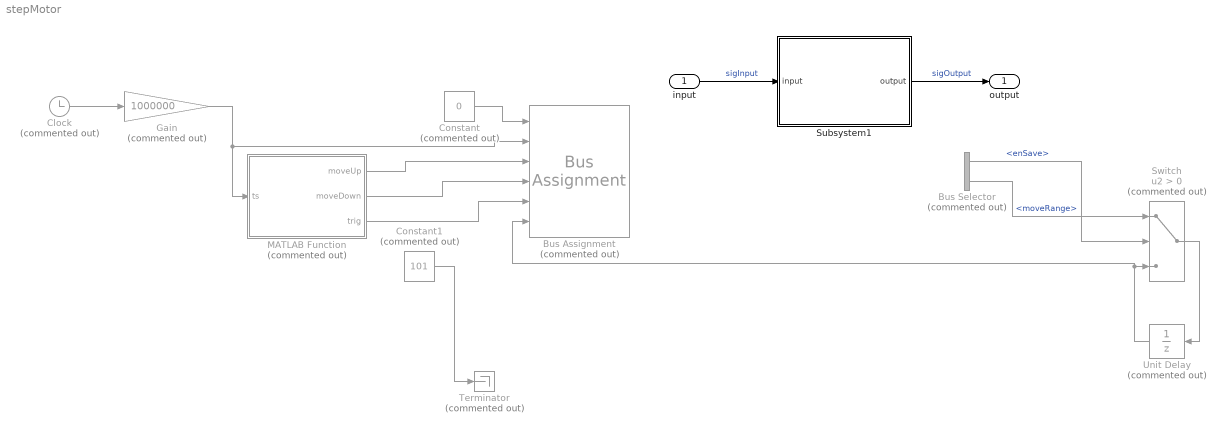
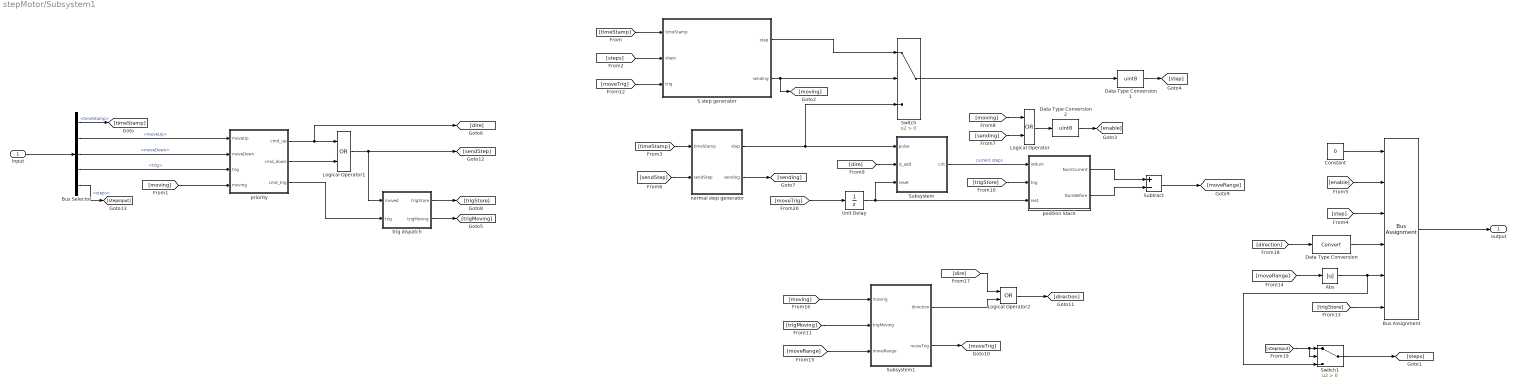
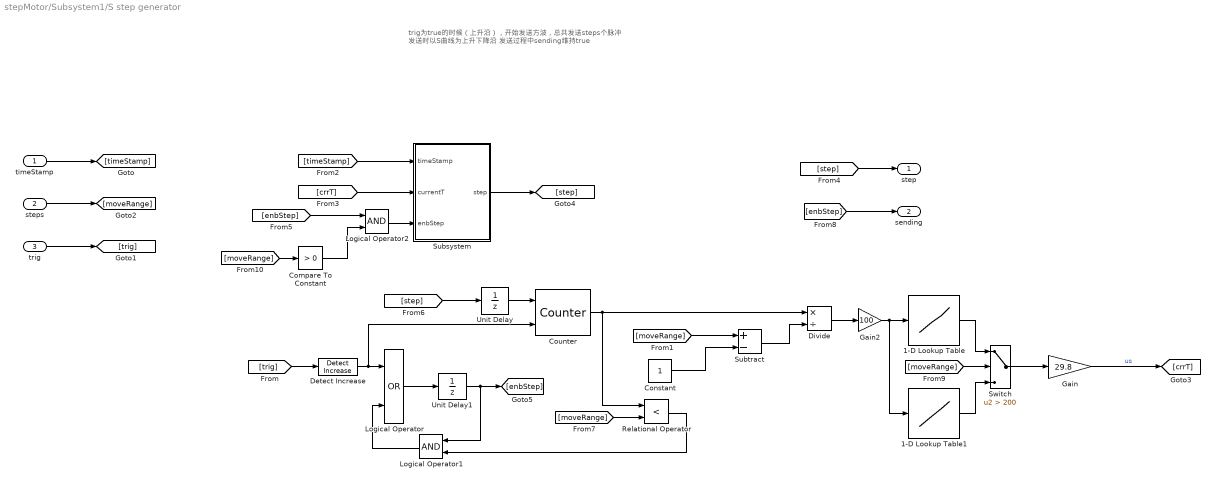
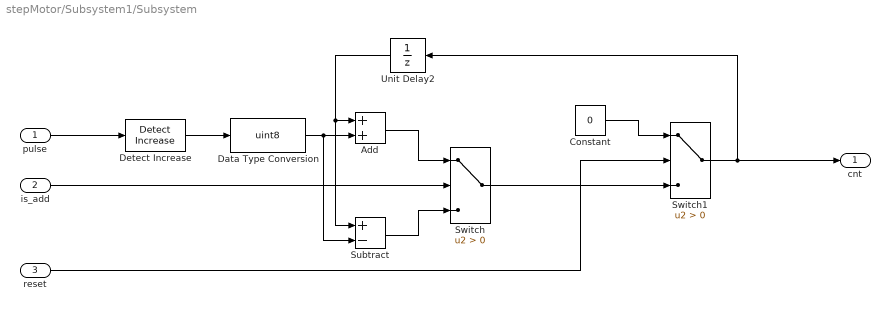
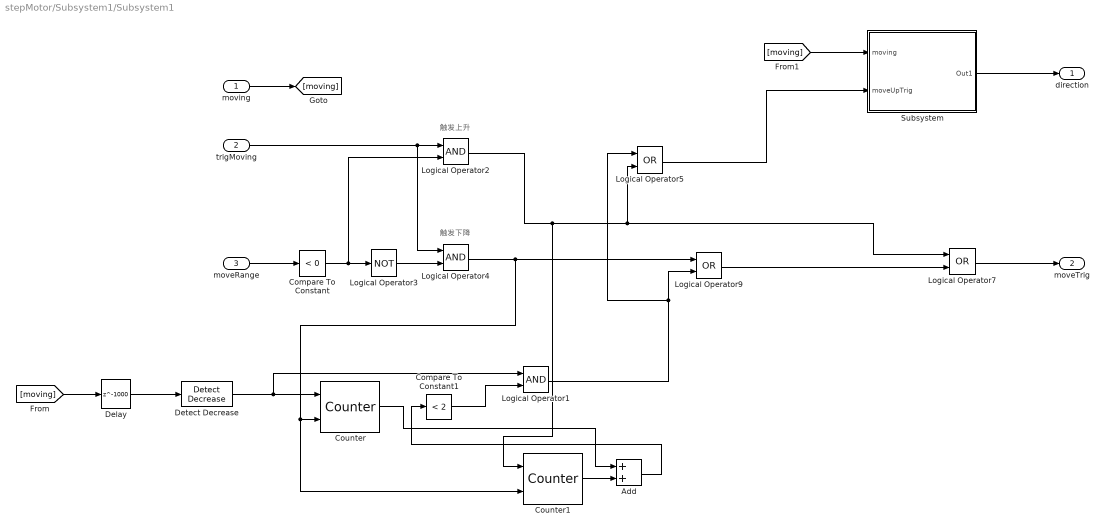
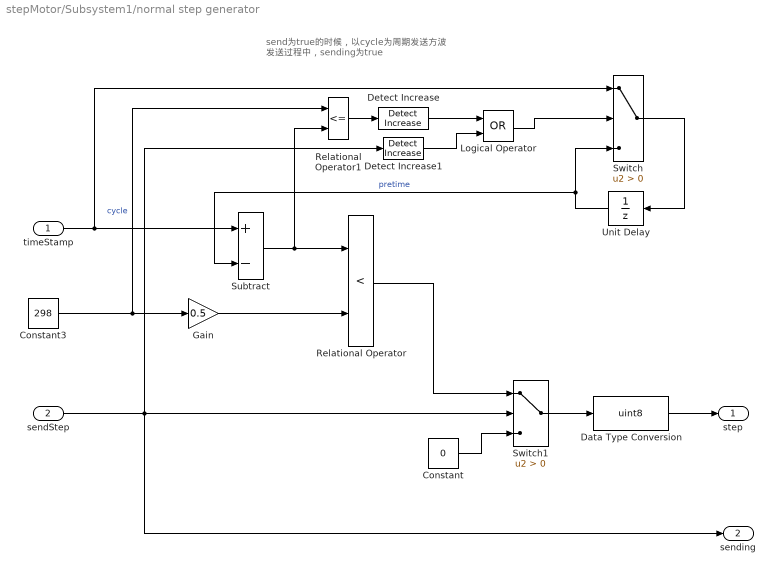
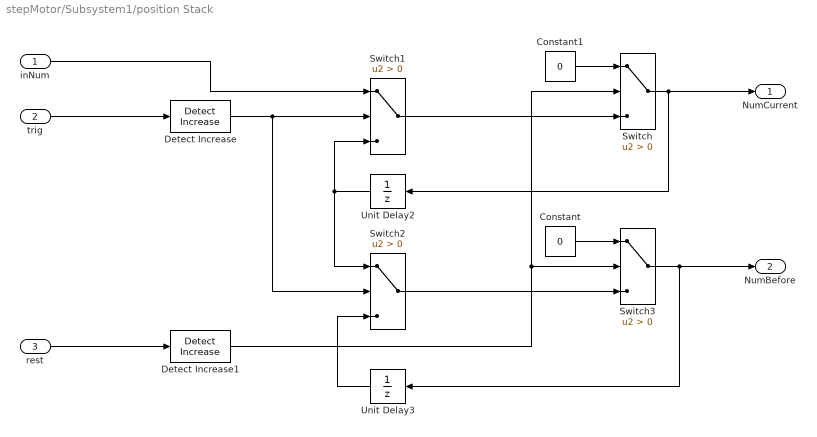
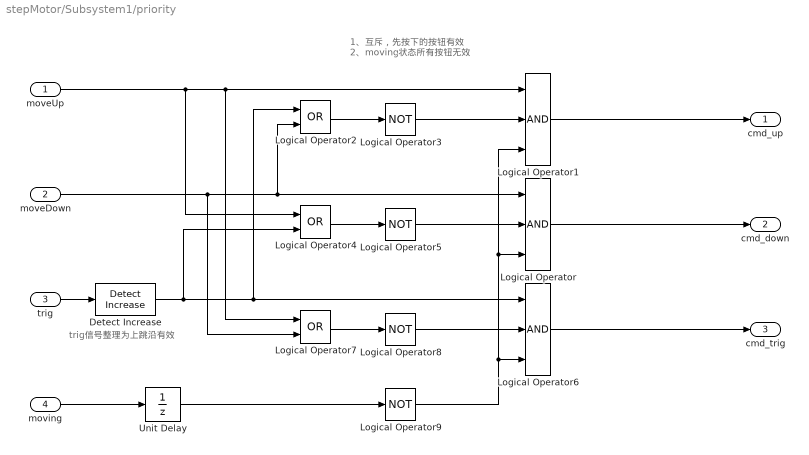
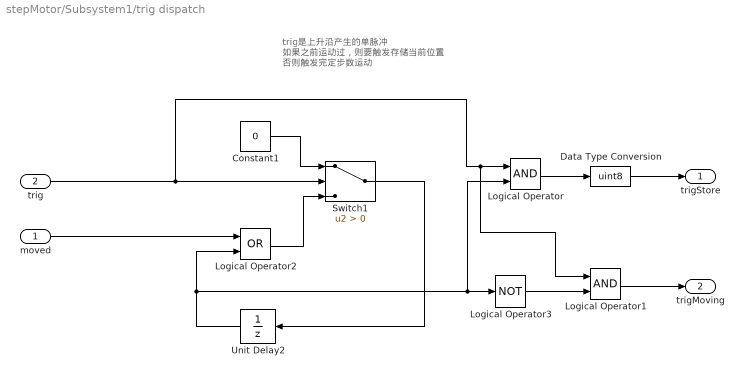
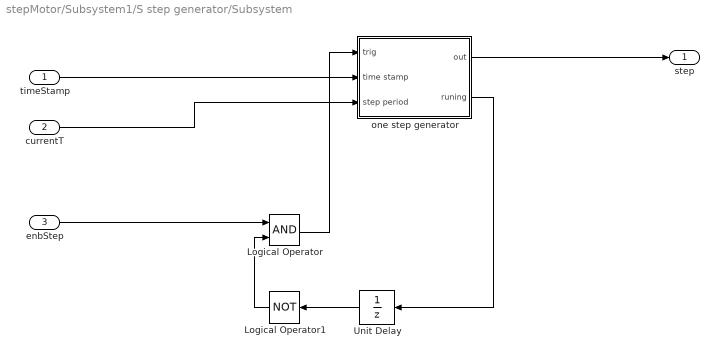
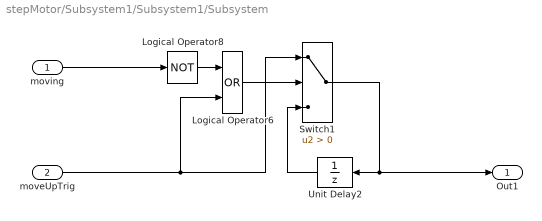
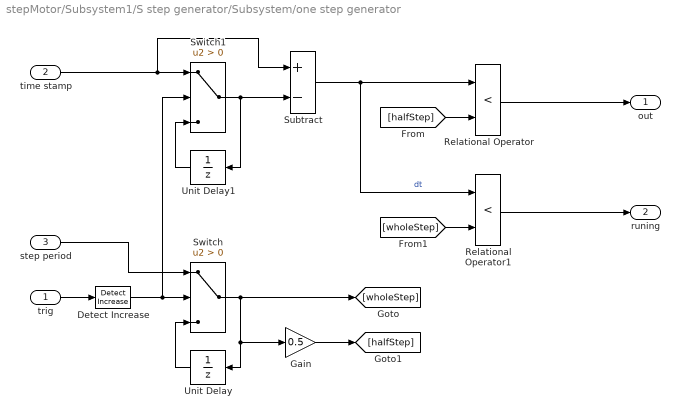
== matlab function stepMotor/MATLAB Function ==
function [moveUp, moveDown, trig] = fcn(ts)
    moveUp = uint8(0);
    moveDown = uint8(0);
    trig = uint8(0);

    if(ts>100000 && ts <200000) % 0.1s-0.2s
        moveDown = uint8(1);
    end

    if(ts>280000 && ts <290000) % 0.28s-0.29s
        trig = uint8(1);
    end

    if(ts>300000 && ts <350000) % 0.30s-0.35s
        moveUp = uint8(1);
    end

    if(ts>360000 && ts <370000) % 0.36s-0.37s
        trig = uint8(1);
    end

    if(ts>380000 && ts <390000) % 0.38s-0.39s
        trig = uint8(1);
    end

    if(ts>400000 && ts <410000) % 0.4s-0.41s
        trig = uint8(1);
    end

    if(ts>420000 && ts <430000) % 0.42s-0.43s
        trig = uint8(1);
    end
end

/*
 * File: stepMotor.c
 *
 * Code generated for Simulink model 'stepMotor'.
 *
 * Model version                  : 1.85
 * Simulink Coder version         : 23.2 (R2023b) 01-Aug-2023
 * C/C++ source code generated on : Sun Jun 30 20:59:51 2024
 *
 * Target selection: ert.tlc
 * Embedded hardware selection: ARM Compatible->ARM Cortex-M
 * Code generation objectives: Unspecified
 * Validation result: Not run
 */

#include "stepMotor.h"
#include "stepMotor_private.h"
#include "rtwtypes.h"
#include "stepMotor_types.h"
#include "multiword_types.h"

/* Exported block signals */
outStruct sigOutput;                   /* '<S1>/Bus Assignment' */

/* Block signals (default storage) */
B_stepMotor_T stepMotor_B;

/* Block states (default storage) */
DW_stepMotor_T stepMotor_DW;

/* Real-time model */
static RT_MODEL_stepMotor_T stepMotor_M_;
RT_MODEL_stepMotor_T *const stepMotor_M = &stepMotor_M_;
real32_T look1_iflf_binlcapw(real32_T u0, const real32_T bp0[], const real32_T
  table[], uint32_T maxIndex)
{
  real32_T frac;
  real32_T y;
  uint32_T iLeft;

  /* Column-major Lookup 1-D
     Search method: 'binary'
     Use previous index: 'off'
     Interpolation method: 'Linear point-slope'
     Extrapolation method: 'Clip'
     Use last breakpoint for index at or above upper limit: 'on'
     Remove protection against out-of-range input in generated code: 'off'
   */
  /* Prelookup - Index and Fraction
     Index Search method: 'binary'
     Extrapolation method: 'Clip'
     Use previous index: 'off'
     Use last breakpoint for index at or above upper limit: 'on'
     Remove protection against out-of-range input in generated code: 'off'
   */
  if (u0 <= bp0[0U]) {
    iLeft = 0U;
    frac = 0.0F;
  } else if (u0 < bp0[maxIndex]) {
    uint32_T bpIdx;
    uint32_T iRght;

    /* Binary Search */
    bpIdx = maxIndex >> 1U;
    iLeft = 0U;
    iRght = maxIndex;
    while (iRght - iLeft > 1U) {
      if (u0 < bp0[bpIdx]) {
        iRght = bpIdx;
      } else {
        iLeft = bpIdx;
      }

      bpIdx = (iRght + iLeft) >> 1U;
    }

    frac = (u0 - bp0[iLeft]) / (bp0[iLeft + 1U] - bp0[iLeft]);
  } else {
    iLeft = maxIndex;
    frac = 0.0F;
  }

  /* Column-major Interpolation 1-D
     Interpolation method: 'Linear point-slope'
     Use last breakpoint for index at or above upper limit: 'on'
     Overflow mode: 'portable wrapping'
   */
  if (iLeft == maxIndex) {
    y = table[iLeft];
  } else {
    real32_T yL_0d0;
    yL_0d0 = table[iLeft];
    y = (table[iLeft + 1U] - yL_0d0) * frac + yL_0d0;
  }

  return y;
}

void MultiWordSub(const uint32_T u1[], const uint32_T u2[], uint32_T y[],
                  int32_T n)
{
  int32_T i;
  uint32_T borrow = 0U;
  for (i = 0; i < n; i++) {
    uint32_T u1i;
    uint32_T yi;
    u1i = u1[i];
    yi = (u1i - u2[i]) - borrow;
    y[i] = yi;
    borrow = borrow != 0U ? (uint32_T)(yi >= u1i) : (uint32_T)(yi > u1i);
  }
}

real_T uMultiWord2Double(const uint32_T u1[], int32_T n1, int32_T e1)
{
  real_T y;
  int32_T exp_0;
  int32_T i;
  y = 0.0;
  exp_0 = e1;
  for (i = 0; i < n1; i++) {
    y += ldexp(u1[i], exp_0);
    exp_0 += 32;
  }

  return y;
}

real32_T uMultiWordSingle(const uint32_T u1[], int32_T n1, int32_T e1)
{
  int32_T exp_1;
  int32_T i;
  real32_T y;
  y = 0.0F;
  exp_1 = e1;
  for (i = 0; i < n1; i++) {
    y += (real32_T)ldexp((real32_T)u1[i], exp_1);
    exp_1 += 32;
  }

  return y;
}

uint32_T MWDSP_EPH_R_B(boolean_T evt, uint32_T *sta)
{
  int32_T curState;
  int32_T lastzcevent;
  int32_T newState;
  int32_T newStateR;
  uint32_T previousState;
  uint32_T retVal;

  /* S-Function (sdspcount2): '<S4>/Counter' */
  /* Detect rising edge events */
  previousState = *sta;
  retVal = 0U;
  lastzcevent = 0;
  newState = 5;
  newStateR = 5;
  if (evt) {
    curState = 2;
  } else {
    curState = 1;
  }

  if (*sta == 5U) {
    newStateR = curState;
  } else if ((uint32_T)curState != *sta) {
    if (*sta == 3U) {
      if ((uint32_T)curState == 1U) {
        newStateR = 1;
      } else {
        lastzcevent = 2;
        previousState = 1U;
      }
    }

    if (previousState == 4U) {
      if ((uint32_T)curState == 1U) {
        newStateR = 1;
      } else {
        lastzcevent = 3;
        previousState = 1U;
      }
    }

    if ((previousState == 1U) && ((uint32_T)curState == 2U)) {
      retVal = 2U;
    }

    if (previousState == 0U) {
      retVal = 2U;
    }

    if (retVal == (uint32_T)lastzcevent) {
      retVal = 0U;
    }

    if (((uint32_T)curState == 1U) && (retVal == 2U)) {
      newState = 3;
    } else {
      newState = curState;
    }
  }

  if ((uint32_T)newStateR != 5U) {
    *sta = (uint32_T)newStateR;
    retVal = 0U;
  }

  if ((uint32_T)newState != 5U) {
    *sta = (uint32_T)newState;
  }

  /* End of S-Function (sdspcount2): '<S4>/Counter' */
  return retVal;
}

uint32_T MWDSP_EPH_F_B(boolean_T evt, uint32_T *sta)
{
  int32_T curState;
  int32_T lastzcevent;
  int32_T newState;
  int32_T newStateR;
  uint32_T previousState;
  uint32_T retVal;

  /* S-Function (sdspcount2): '<S2>/Counter' */
  /* Detect falling edge events */
  previousState = *sta;
  retVal = 0U;
  lastzcevent = 0;
  newState = 5;
  newStateR = 5;
  if (evt) {
    curState = 2;
  } else {
    curState = 1;
  }

  if (*sta == 5U) {
    newStateR = curState;
  } else if ((uint32_T)curState != *sta) {
    if (*sta == 3U) {
      if ((uint32_T)curState == 1U) {
        newStateR = 1;
      } else {
        lastzcevent = 2;
        previousState = 1U;
      }
    }

    if (previousState == 4U) {
      if ((uint32_T)curState == 1U) {
        newStateR = 1;
      } else {
        lastzcevent = 3;
        previousState = 1U;
      }
    }

    if (previousState == 2U) {
      retVal = 3U;
    }

    if (retVal == (uint32_T)lastzcevent) {
      retVal = 0U;
    }

    if (((uint32_T)curState == 1U) && (retVal == 3U)) {
      newState = 4;
    } else {
      newState = curState;
    }
  }

  if ((uint32_T)newStateR != 5U) {
    *sta = (uint32_T)newStateR;
    retVal = 0U;
  }

  if ((uint32_T)newState != 5U) {
    *sta = (uint32_T)newState;
  }

  /* End of S-Function (sdspcount2): '<S2>/Counter' */
  return retVal;
}

/* Model step function */
void stepMotor_step(void)
{
  uint64m_T rtb_Subtract;
  uint64m_T rtb_dt;
  int32_T rtb_Abs;
  int32_T rtb_UnitDelay2_b;
  real32_T rtb_Switch_k;
  uint32_T rtb_Switch1_n;
  uint8_T rtb_DataTypeConversion;
  boolean_T rtb_FixPtRelationalOperator_j;
  boolean_T rtb_LogicalOperator;
  boolean_T rtb_LogicalOperator1;
  boolean_T rtb_LogicalOperator1_kl;
  boolean_T rtb_LogicalOperator1_m;
  boolean_T rtb_LogicalOperator5;
  boolean_T rtb_LogicalOperator6_l;
  boolean_T rtb_LogicalOperator_j;
  boolean_T rtb_UnitDelay1;
  boolean_T rtb_UnitDelay_h;
  boolean_T rtb_UnitDelay_j;

  /* UnitDelay: '<S2>/Unit Delay1' */
  rtb_UnitDelay1 = stepMotor_DW.UnitDelay1_DSTATE_f;

  /* RelationalOperator: '<S23>/FixPt Relational Operator' incorporates:
   *  Inport: '<Root>/input'
   *  UnitDelay: '<S23>/Delay Input1'
   *
   * Block description for '<S23>/Delay Input1':
   *
   *  Store in Global RAM
   */
  rtb_LogicalOperator6_l = (sigInput.trig > stepMotor_DW.DelayInput1_DSTATE);

  /* Logic: '<S7>/Logical Operator9' incorporates:
   *  UnitDelay: '<S7>/Unit Delay'
   */
  rtb_UnitDelay_j = !stepMotor_DW.UnitDelay_DSTATE_p;

  /* Logic: '<S7>/Logical Operator2' incorporates:
   *  Logic: '<S7>/Logical Operator4'
   */
  rtb_LogicalOperator1_kl = !rtb_LogicalOperator6_l;

  /* Logic: '<S7>/Logical Operator1' incorporates:
   *  Inport: '<Root>/input'
   *  Logic: '<S7>/Logical Operator2'
   *  Logic: '<S7>/Logical Operator3'
   */
  rtb_LogicalOperator1 = ((sigInput.moveUp != 0) && (rtb_LogicalOperator1_kl &&
    (sigInput.moveDown == 0)) && rtb_UnitDelay_j);

  /* Logic: '<S1>/Logical Operator1' incorporates:
   *  Inport: '<Root>/input'
   *  Logic: '<S7>/Logical Operator'
   *  Logic: '<S7>/Logical Operator4'
   *  Logic: '<S7>/Logical Operator5'
   */
  rtb_LogicalOperator1_kl = (rtb_LogicalOperator1 || ((sigInput.moveDown != 0) &&
    ((sigInput.moveUp == 0) && rtb_LogicalOperator1_kl) && rtb_UnitDelay_j));

  /* DataTypeConversion: '<S1>/Data Type Conversion2' incorporates:
   *  Logic: '<S1>/Logical Operator'
   *  UnitDelay: '<S23>/Delay Input1'
   *  UnitDelay: '<S2>/Unit Delay1'
   *
   * Block description for '<S23>/Delay Input1':
   *
   *  Store in Global RAM
   */
  stepMotor_DW.DelayInput1_DSTATE = (uint8_T)(stepMotor_DW.UnitDelay1_DSTATE_f ||
    rtb_LogicalOperator1_kl);

  /* Logic: '<S7>/Logical Operator6' incorporates:
   *  Inport: '<Root>/input'
   *  Logic: '<S7>/Logical Operator7'
   *  Logic: '<S7>/Logical Operator8'
   */
  rtb_LogicalOperator6_l = (rtb_LogicalOperator6_l && ((sigInput.moveUp == 0) &&
    (sigInput.moveDown == 0)) && rtb_UnitDelay_j);

  /* DataTypeConversion: '<S8>/Data Type Conversion' incorporates:
   *  Logic: '<S8>/Logical Operator'
   *  UnitDelay: '<S8>/Unit Delay2'
   */
  rtb_DataTypeConversion = (uint8_T)(rtb_LogicalOperator6_l &&
    stepMotor_DW.UnitDelay2_DSTATE_j);

  /* UnitDelay: '<S1>/Unit Delay' */
  rtb_UnitDelay_h = stepMotor_DW.UnitDelay_DSTATE_b;

  /* Sum: '<S5>/Subtract' incorporates:
   *  Inport: '<Root>/input'
   *  UnitDelay: '<S5>/Unit Delay'
   */
  MultiWordSub(&sigInput.timeStamp.chunks[0U],
               &stepMotor_DW.UnitDelay_DSTATE.chunks[0U], &rtb_Subtract.chunks
               [0U], 2);

  /* Switch: '<S5>/Switch1' incorporates:
   *  Constant: '<S5>/Constant'
   *  RelationalOperator: '<S5>/Relational Operator'
   */
  if (rtb_LogicalOperator1_kl) {
    rtb_UnitDelay_j = (uMultiWord2Double(&rtb_Subtract.chunks[0U], 2, 0) <
                       stepMotor_ConstB.Gain);
  } else {
    rtb_UnitDelay_j = false;
  }

  /* End of Switch: '<S5>/Switch1' */

  /* Switch: '<S3>/Switch1' incorporates:
   *  Constant: '<S3>/Constant'
   *  Switch: '<S3>/Switch'
   *  UnitDelay: '<S1>/Unit Delay'
   *  UnitDelay: '<S3>/Unit Delay2'
   */
  if (stepMotor_DW.UnitDelay_DSTATE_b) {
    stepMotor_DW.UnitDelay2_DSTATE = 0;
  } else if (rtb_LogicalOperator1) {
    /* Switch: '<S3>/Switch' incorporates:
     *  DataTypeConversion: '<S5>/Data Type Conversion'
     *  RelationalOperator: '<S14>/FixPt Relational Operator'
     *  Sum: '<S3>/Add'
     *  UnitDelay: '<S14>/Delay Input1'
     *  UnitDelay: '<S3>/Unit Delay2'
     *
     * Block description for '<S14>/Delay Input1':
     *
     *  Store in Global RAM
     */
    stepMotor_DW.UnitDelay2_DSTATE += ((int32_T)rtb_UnitDelay_j >
      stepMotor_DW.DelayInput1_DSTATE_h);
  } else {
    /* UnitDelay: '<S3>/Unit Delay2' incorporates:
     *  DataTypeConversion: '<S5>/Data Type Conversion'
     *  RelationalOperator: '<S14>/FixPt Relational Operator'
     *  Sum: '<S3>/Subtract'
     *  Switch: '<S3>/Switch'
     *  UnitDelay: '<S14>/Delay Input1'
     *
     * Block description for '<S14>/Delay Input1':
     *
     *  Store in Global RAM
     */
    stepMotor_DW.UnitDelay2_DSTATE -= ((int32_T)rtb_UnitDelay_j >
      stepMotor_DW.DelayInput1_DSTATE_h);
  }

  /* End of Switch: '<S3>/Switch1' */

  /* UnitDelay: '<S6>/Unit Delay2' */
  rtb_UnitDelay2_b = stepMotor_DW.UnitDelay2_DSTATE_b;

  /* Switch: '<S6>/Switch' incorporates:
   *  Constant: '<S6>/Constant'
   *  Constant: '<S6>/Constant1'
   *  RelationalOperator: '<S21>/FixPt Relational Operator'
   *  RelationalOperator: '<S22>/FixPt Relational Operator'
   *  Switch: '<S6>/Switch1'
   *  Switch: '<S6>/Switch2'
   *  Switch: '<S6>/Switch3'
   *  UnitDelay: '<S1>/Unit Delay'
   *  UnitDelay: '<S21>/Delay Input1'
   *  UnitDelay: '<S22>/Delay Input1'
   *  UnitDelay: '<S6>/Unit Delay2'
   *  UnitDelay: '<S6>/Unit Delay3'
   *
   * Block description for '<S21>/Delay Input1':
   *
   *  Store in Global RAM
   *
   * Block description for '<S22>/Delay Input1':
   *
   *  Store in Global RAM
   */
  if ((int32_T)stepMotor_DW.UnitDelay_DSTATE_b > (int32_T)
      stepMotor_DW.DelayInput1_DSTATE_c) {
    stepMotor_DW.UnitDelay2_DSTATE_b = 0;
    stepMotor_DW.UnitDelay3_DSTATE = 0;
  } else if (rtb_DataTypeConversion > stepMotor_DW.DelayInput1_DSTATE_m) {
    /* Switch: '<S6>/Switch1' incorporates:
     *  UnitDelay: '<S3>/Unit Delay2'
     *  UnitDelay: '<S6>/Unit Delay2'
     */
    stepMotor_DW.UnitDelay2_DSTATE_b = stepMotor_DW.UnitDelay2_DSTATE;

    /* Switch: '<S6>/Switch2' incorporates:
     *  UnitDelay: '<S6>/Unit Delay3'
     */
    stepMotor_DW.UnitDelay3_DSTATE = rtb_UnitDelay2_b;
  }

  /* End of Switch: '<S6>/Switch' */

  /* Sum: '<S1>/Subtract' incorporates:
   *  UnitDelay: '<S6>/Unit Delay2'
   *  UnitDelay: '<S6>/Unit Delay3'
   */
  rtb_UnitDelay2_b = stepMotor_DW.UnitDelay2_DSTATE_b -
    stepMotor_DW.UnitDelay3_DSTATE;

  /* Abs: '<S1>/Abs' */
  if (rtb_UnitDelay2_b < 0) {
    rtb_Abs = -rtb_UnitDelay2_b;
  } else {
    rtb_Abs = rtb_UnitDelay2_b;
  }

  /* End of Abs: '<S1>/Abs' */

  /* Switch: '<S1>/Switch1' incorporates:
   *  Inport: '<Root>/input'
   */
  if (sigInput.steps > 0U) {
    rtb_Switch1_n = sigInput.steps;
  } else {
    rtb_Switch1_n = (uint32_T)rtb_Abs;
  }

  /* End of Switch: '<S1>/Switch1' */

  /* Logic: '<S11>/Logical Operator' incorporates:
   *  Constant: '<S9>/Constant'
   *  Logic: '<S11>/Logical Operator1'
   *  Logic: '<S2>/Logical Operator2'
   *  RelationalOperator: '<S9>/Compare'
   *  UnitDelay: '<S11>/Unit Delay'
   *  UnitDelay: '<S2>/Unit Delay1'
   */
  rtb_LogicalOperator = (stepMotor_DW.UnitDelay1_DSTATE_f && (rtb_Switch1_n > 0U)
    && (!stepMotor_DW.UnitDelay_DSTATE_ip));

  /* RelationalOperator: '<S13>/FixPt Relational Operator' incorporates:
   *  UnitDelay: '<S13>/Delay Input1'
   *
   * Block description for '<S13>/Delay Input1':
   *
   *  Store in Global RAM
   */
  rtb_FixPtRelationalOperator_j = ((int32_T)rtb_LogicalOperator > (int32_T)
    stepMotor_DW.DelayInput1_DSTATE_h1);

  /* Switch: '<S12>/Switch1' incorporates:
   *  Inport: '<Root>/input'
   *  UnitDelay: '<S12>/Unit Delay1'
   */
  if (rtb_FixPtRelationalOperator_j) {
    stepMotor_DW.UnitDelay1_DSTATE = sigInput.timeStamp;
  }

  /* End of Switch: '<S12>/Switch1' */

  /* Sum: '<S12>/Subtract' incorporates:
   *  Inport: '<Root>/input'
   *  Switch: '<S12>/Switch1'
   *  UnitDelay: '<S12>/Unit Delay1'
   */
  MultiWordSub(&sigInput.timeStamp.chunks[0U],
               &stepMotor_DW.UnitDelay1_DSTATE.chunks[0U], &rtb_dt.chunks[0U], 2);

  /* Logic: '<S8>/Logical Operator1' incorporates:
   *  Logic: '<S8>/Logical Operator3'
   *  UnitDelay: '<S8>/Unit Delay2'
   */
  rtb_LogicalOperator1_m = (rtb_LogicalOperator6_l &&
    (!stepMotor_DW.UnitDelay2_DSTATE_j));

  /* RelationalOperator: '<S15>/Compare' incorporates:
   *  Constant: '<S15>/Constant'
   */
  rtb_LogicalOperator5 = (rtb_UnitDelay2_b < 0);

  /* Logic: '<S4>/Logical Operator2' */
  rtb_LogicalOperator_j = (rtb_LogicalOperator1_m && rtb_LogicalOperator5);

  /* Logic: '<S4>/Logical Operator4' incorporates:
   *  Logic: '<S4>/Logical Operator3'
   */
  stepMotor_B.LogicalOperator4 = (rtb_LogicalOperator1_m &&
    (!rtb_LogicalOperator5));

  /* Delay: '<S4>/Delay' */
  rtb_LogicalOperator1_m = stepMotor_DW.Delay_DSTATE[0];

  /* RelationalOperator: '<S17>/FixPt Relational Operator' incorporates:
   *  Delay: '<S4>/Delay'
   *  UnitDelay: '<S17>/Delay Input1'
   *
   * Block description for '<S17>/Delay Input1':
   *
   *  Store in Global RAM
   */
  rtb_LogicalOperator5 = ((int32_T)stepMotor_DW.Delay_DSTATE[0] < (int32_T)
    stepMotor_DW.DelayInput1_DSTATE_ca);

  /* S-Function (sdspcount2): '<S4>/Counter' */
  if (MWDSP_EPH_R_B(stepMotor_B.LogicalOperator4,
                    &stepMotor_DW.Counter_RstEphState) != 0U) {
    stepMotor_DW.Counter_Count_o = 0U;
  }

  if (MWDSP_EPH_R_B(rtb_LogicalOperator5, &stepMotor_DW.Counter_ClkEphState) !=
      0U) {
    stepMotor_DW.Counter_Count_o++;
  }

  /* S-Function (sdspcount2): '<S4>/Counter1' */
  if (MWDSP_EPH_R_B(stepMotor_B.LogicalOperator4,
                    &stepMotor_DW.Counter1_RstEphState) != 0U) {
    stepMotor_DW.Counter1_Count = 0U;
  }

  if (MWDSP_EPH_R_B(rtb_LogicalOperator_j, &stepMotor_DW.Counter1_ClkEphState)
      != 0U) {
    stepMotor_DW.Counter1_Count++;
  }

  /* Logic: '<S4>/Logical Operator1' incorporates:
   *  Constant: '<S16>/Constant'
   *  RelationalOperator: '<S16>/Compare'
   *  S-Function (sdspcount2): '<S4>/Counter'
   *  S-Function (sdspcount2): '<S4>/Counter1'
   *  Sum: '<S4>/Add'
   */
  rtb_LogicalOperator5 = (rtb_LogicalOperator5 && ((uint8_T)((uint32_T)
    stepMotor_DW.Counter_Count_o + stepMotor_DW.Counter1_Count) < 2));

  /* Logic: '<S4>/Logical Operator7' incorporates:
   *  Logic: '<S4>/Logical Operator9'
   *  UnitDelay: '<S1>/Unit Delay'
   */
  stepMotor_DW.UnitDelay_DSTATE_b = (rtb_LogicalOperator_j ||
    (stepMotor_B.LogicalOperator4 || rtb_LogicalOperator5));

  /* RelationalOperator: '<S10>/FixPt Relational Operator' incorporates:
   *  UnitDelay: '<S10>/Delay Input1'
   *  UnitDelay: '<S1>/Unit Delay'
   *
   * Block description for '<S10>/Delay Input1':
   *
   *  Store in Global RAM
   */
  stepMotor_B.FixPtRelationalOperator = ((int32_T)
    stepMotor_DW.UnitDelay_DSTATE_b > (int32_T)stepMotor_DW.DelayInput1_DSTATE_g);

  /* S-Function (sdspcount2): '<S2>/Counter' incorporates:
   *  UnitDelay: '<S2>/Unit Delay'
   */
  if (MWDSP_EPH_F_B(stepMotor_B.FixPtRelationalOperator,
                    &stepMotor_DW.Counter_RstEphState_f) != 0U) {
    stepMotor_DW.Counter_Count = 0U;
  }

  if (MWDSP_EPH_F_B(stepMotor_DW.UnitDelay_DSTATE_f,
                    &stepMotor_DW.Counter_ClkEphState_i) != 0U) {
    stepMotor_DW.Counter_Count++;
  }

  /* Switch: '<S12>/Switch' incorporates:
   *  Gain: '<S2>/Gain'
   *  UnitDelay: '<S12>/Unit Delay'
   */
  if (rtb_FixPtRelationalOperator_j) {
    /* Switch: '<S2>/Switch' incorporates:
     *  Constant: '<S2>/Constant'
     *  Gain: '<S2>/Gain2'
     *  Lookup_n-D: '<S2>/1-D Lookup Table'
     *  Lookup_n-D: '<S2>/1-D Lookup Table1'
     *  Product: '<S2>/Divide'
     *  S-Function (sdspcount2): '<S2>/Counter'
     *  Sum: '<S2>/Subtract'
     */
    if (rtb_Switch1_n > 200U) {
      rtb_Switch_k = look1_iflf_binlcapw((real32_T)((real_T)
        stepMotor_DW.Counter_Count / ((real_T)rtb_Switch1_n - 1.0)) * 100.0F,
        stepMotor_ConstP.uDLookupTable_bp01Data,
        stepMotor_ConstP.uDLookupTable_tableData, 13U);
    } else {
      rtb_Switch_k = look1_iflf_binlcapw((real32_T)((real_T)
        stepMotor_DW.Counter_Count / ((real_T)rtb_Switch1_n - 1.0)) * 100.0F,
        stepMotor_ConstP.uDLookupTable1_bp01Data,
        stepMotor_ConstP.uDLookupTable1_tableData, 13U);
    }

    /* End of Switch: '<S2>/Switch' */
    stepMotor_DW.UnitDelay_DSTATE_i = 29.8F * rtb_Switch_k;
  }

  /* End of Switch: '<S12>/Switch' */

  /* RelationalOperator: '<S12>/Relational Operator' incorporates:
   *  Gain: '<S12>/Gain'
   *  UnitDelay: '<S12>/Unit Delay'
   *  UnitDelay: '<S2>/Unit Delay'
   */
  stepMotor_DW.UnitDelay_DSTATE_f = (uMultiWordSingle(&rtb_dt.chunks[0U], 2, 0) <
    0.5F * stepMotor_DW.UnitDelay_DSTATE_i);

  /* Logic: '<S4>/Logical Operator5' */
  rtb_LogicalOperator5 = (rtb_LogicalOperator5 || rtb_LogicalOperator_j);

  /* Switch: '<S18>/Switch1' incorporates:
   *  Logic: '<S18>/Logical Operator6'
   *  Logic: '<S18>/Logical Operator8'
   *  UnitDelay: '<S18>/Unit Delay2'
   *  UnitDelay: '<S2>/Unit Delay1'
   */
  if ((!stepMotor_DW.UnitDelay1_DSTATE_f) || rtb_LogicalOperator5) {
    stepMotor_DW.UnitDelay2_DSTATE_i = rtb_LogicalOperator5;
  }

  /* End of Switch: '<S18>/Switch1' */

  /* BusAssignment: '<S1>/Bus Assignment' incorporates:
   *  UnitDelay: '<S23>/Delay Input1'
   *
   * Block description for '<S23>/Delay Input1':
   *
   *  Store in Global RAM
   */
  sigOutput.enable = stepMotor_DW.DelayInput1_DSTATE;

  /* Switch: '<S1>/Switch' incorporates:
   *  UnitDelay: '<S2>/Unit Delay1'
   */
  if (stepMotor_DW.UnitDelay1_DSTATE_f) {
    /* BusAssignment: '<S1>/Bus Assignment' incorporates:
     *  UnitDelay: '<S2>/Unit Delay'
     */
    sigOutput.step = stepMotor_DW.UnitDelay_DSTATE_f;
  } else {
    /* BusAssignment: '<S1>/Bus Assignment' incorporates:
     *  DataTypeConversion: '<S5>/Data Type Conversion'
     */
    sigOutput.step = rtb_UnitDelay_j;
  }

  /* End of Switch: '<S1>/Switch' */

  /* BusAssignment: '<S1>/Bus Assignment' incorporates:
   *  DataTypeConversion: '<S1>/Data Type Conversion'
   *  Logic: '<S1>/Logical Operator2'
   *  UnitDelay: '<S18>/Unit Delay2'
   */
  sigOutput.direction = (uint8_T)(rtb_LogicalOperator1 ||
    stepMotor_DW.UnitDelay2_DSTATE_i);
  sigOutput.moveRange = rtb_Abs;
  sigOutput.enSave = rtb_DataTypeConversion;

  /* RelationalOperator: '<S12>/Relational Operator1' incorporates:
   *  UnitDelay: '<S11>/Unit Delay'
   *  UnitDelay: '<S12>/Unit Delay'
   */
  stepMotor_DW.UnitDelay_DSTATE_ip = (uMultiWordSingle(&rtb_dt.chunks[0U], 2, 0)
    < stepMotor_DW.UnitDelay_DSTATE_i);

  /* RelationalOperator: '<S5>/Relational Operator1' incorporates:
   *  Constant: '<S5>/Constant3'
   */
  rtb_LogicalOperator1 = (uMultiWord2Double(&rtb_Subtract.chunks[0U], 2, 0) >=
    298.0);

  /* Switch: '<S5>/Switch' incorporates:
   *  Inport: '<Root>/input'
   *  Logic: '<S5>/Logical Operator'
   *  RelationalOperator: '<S19>/FixPt Relational Operator'
   *  RelationalOperator: '<S20>/FixPt Relational Operator'
   *  UnitDelay: '<S19>/Delay Input1'
   *  UnitDelay: '<S20>/Delay Input1'
   *  UnitDelay: '<S5>/Unit Delay'
   *
   * Block description for '<S19>/Delay Input1':
   *
   *  Store in Global RAM
   *
   * Block description for '<S20>/Delay Input1':
   *
   *  Store in Global RAM
   */
  if (((int32_T)rtb_LogicalOperator1 > (int32_T)
       stepMotor_DW.DelayInput1_DSTATE_go) || ((int32_T)rtb_LogicalOperator1_kl >
       (int32_T)stepMotor_DW.DelayInput1_DSTATE_f)) {
    stepMotor_DW.UnitDelay_DSTATE = sigInput.timeStamp;
  }

  /* End of Switch: '<S5>/Switch' */

  /* Switch: '<S8>/Switch1' incorporates:
   *  Constant: '<S8>/Constant1'
   *  Logic: '<S8>/Logical Operator2'
   *  UnitDelay: '<S8>/Unit Delay2'
   */
  if (rtb_LogicalOperator6_l) {
    stepMotor_DW.UnitDelay2_DSTATE_j = false;
  } else {
    stepMotor_DW.UnitDelay2_DSTATE_j = (rtb_LogicalOperator1_kl ||
      stepMotor_DW.UnitDelay2_DSTATE_j);
  }

  /* End of Switch: '<S8>/Switch1' */

  /* Update for UnitDelay: '<S2>/Unit Delay1' incorporates:
   *  Logic: '<S2>/Logical Operator'
   *  Logic: '<S2>/Logical Operator1'
   *  RelationalOperator: '<S2>/Relational Operator'
   *  S-Function (sdspcount2): '<S2>/Counter'
   */
  stepMotor_DW.UnitDelay1_DSTATE_f = (stepMotor_B.FixPtRelationalOperator ||
    (stepMotor_DW.UnitDelay1_DSTATE_f && (stepMotor_DW.Counter_Count <
    rtb_Switch1_n)));

  /* Update for UnitDelay: '<S23>/Delay Input1' incorporates:
   *  Inport: '<Root>/input'
   *
   * Block description for '<S23>/Delay Input1':
   *
   *  Store in Global RAM
   */
  stepMotor_DW.DelayInput1_DSTATE = sigInput.trig;

  /* Update for UnitDelay: '<S7>/Unit Delay' */
  stepMotor_DW.UnitDelay_DSTATE_p = rtb_UnitDelay1;

  /* Update for UnitDelay: '<S22>/Delay Input1'
   *
   * Block description for '<S22>/Delay Input1':
   *
   *  Store in Global RAM
   */
  stepMotor_DW.DelayInput1_DSTATE_c = rtb_UnitDelay_h;

  /* Update for UnitDelay: '<S14>/Delay Input1' incorporates:
   *  DataTypeConversion: '<S5>/Data Type Conversion'
   *
   * Block description for '<S14>/Delay Input1':
   *
   *  Store in Global RAM
   */
  stepMotor_DW.DelayInput1_DSTATE_h = rtb_UnitDelay_j;

  /* Update for UnitDelay: '<S21>/Delay Input1'
   *
   * Block description for '<S21>/Delay Input1':
   *
   *  Store in Global RAM
   */
  stepMotor_DW.DelayInput1_DSTATE_m = rtb_DataTypeConversion;

  /* Update for UnitDelay: '<S13>/Delay Input1'
   *
   * Block description for '<S13>/Delay Input1':
   *
   *  Store in Global RAM
   */
  stepMotor_DW.DelayInput1_DSTATE_h1 = rtb_LogicalOperator;

  /* Update for Delay: '<S4>/Delay' */
  for (rtb_UnitDelay2_b = 0; rtb_UnitDelay2_b < 999; rtb_UnitDelay2_b++) {
    stepMotor_DW.Delay_DSTATE[rtb_UnitDelay2_b] =
      stepMotor_DW.Delay_DSTATE[rtb_UnitDelay2_b + 1];
  }

  stepMotor_DW.Delay_DSTATE[999] = rtb_UnitDelay1;

  /* End of Update for Delay: '<S4>/Delay' */

  /* Update for UnitDelay: '<S17>/Delay Input1'
   *
   * Block description for '<S17>/Delay Input1':
   *
   *  Store in Global RAM
   */
  stepMotor_DW.DelayInput1_DSTATE_ca = rtb_LogicalOperator1_m;

  /* Update for UnitDelay: '<S10>/Delay Input1' incorporates:
   *  UnitDelay: '<S1>/Unit Delay'
   *
   * Block description for '<S10>/Delay Input1':
   *
   *  Store in Global RAM
   */
  stepMotor_DW.DelayInput1_DSTATE_g = stepMotor_DW.UnitDelay_DSTATE_b;

  /* Update for UnitDelay: '<S19>/Delay Input1'
   *
   * Block description for '<S19>/Delay Input1':
   *
   *  Store in Global RAM
   */
  stepMotor_DW.DelayInput1_DSTATE_go = rtb_LogicalOperator1;

  /* Update for UnitDelay: '<S20>/Delay Input1'
   *
   * Block description for '<S20>/Delay Input1':
   *
   *  Store in Global RAM
   */
  stepMotor_DW.DelayInput1_DSTATE_f = rtb_LogicalOperator1_kl;
}
